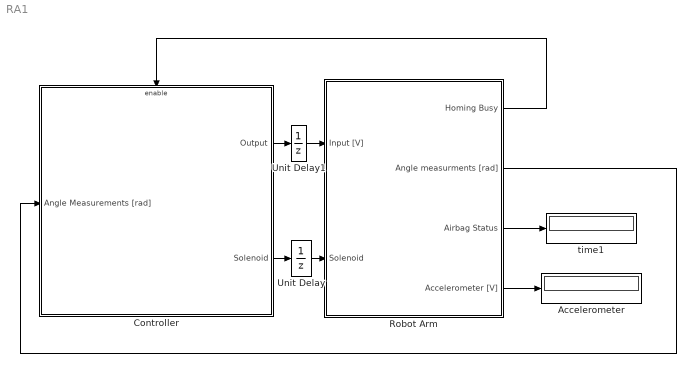
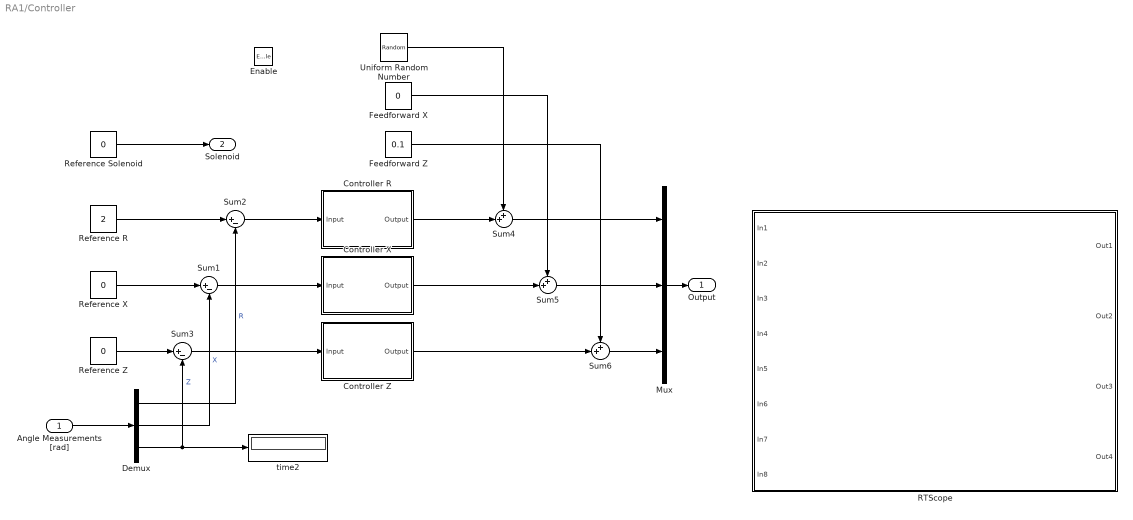
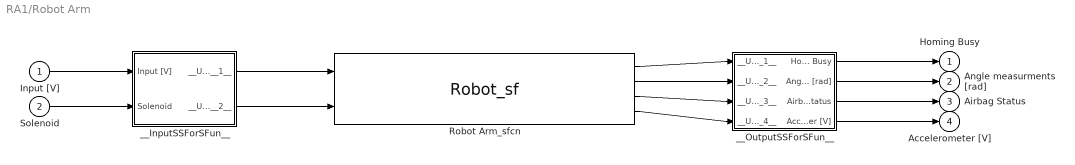
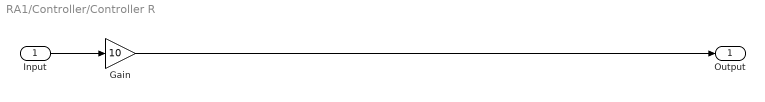
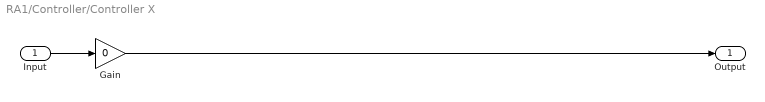
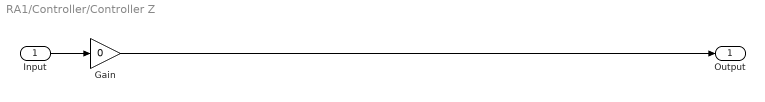
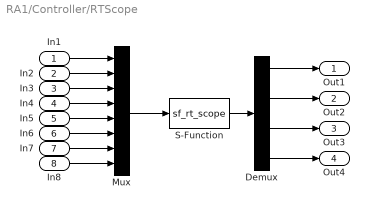
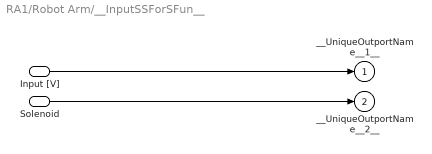
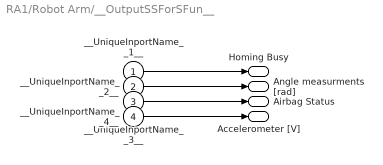
/*
 * RA1.c
 *
 * Academic License - for use in teaching, academic research, and meeting
 * course requirements at degree granting institutions only.  Not for
 * government, commercial, or other organizational use.
 *
 * Code generation for model "RA1".
 *
 * Model version              : 1.900
 * Simulink Coder version : 8.9 (R2015b) 13-Aug-2015
 * C source code generated on : Thu Mar 24 12:53:29 2016
 *
 * Target selection: ectarget.tlc
 * Note: GRT includes extra infrastructure and instrumentation for prototyping
 * Embedded hardware selection: 32-bit Generic
 * Code generation objectives: Unspecified
 * Validation result: Not run
 */

#include "RA1.h"
#include "RA1_private.h"
#include "RA1_dt.h"
#undef S_FUNCTION_NAME
#if !defined(RTW_GENERATED_SFCN_TUNABLE_PRMS_Robot_sf)
#define RTW_GENERATED_SFCN_TUNABLE_PRMS_Robot_sf
#endif

#include "Robot_sf.h"

const real_T RA1_RGND = 0.0;           /* real_T ground */

/* Block signals (auto storage) */
B_RA1_T RA1_B;

/* Block states (auto storage) */
DW_RA1_T RA1_DW;

/* Real-time model */
RT_MODEL_RA1_T RA1_M_;
RT_MODEL_RA1_T *const RA1_M = &RA1_M_;
real_T rt_urand_Upu32_Yd_f_pw_snf(uint32_T *u)
{
  uint32_T lo;
  uint32_T hi;

  /* Uniform random number generator (random number between 0 and 1)

     #define IA      16807                      magic multiplier = 7^5
     #define IM      2147483647                 modulus = 2^31-1
     #define IQ      127773                     IM div IA
     #define IR      2836                       IM modulo IA
     #define S       4.656612875245797e-10      reciprocal of 2^31-1
     test = IA * (seed % IQ) - IR * (seed/IQ)
     seed = test < 0 ? (test + IM) : test
     return (seed*S)
   */
  lo = *u % 127773U * 16807U;
  hi = *u / 127773U * 2836U;
  if (lo < hi) {
    *u = 2147483647U - (hi - lo);
  } else {
    *u = lo - hi;
  }

  return (real_T)*u * 4.6566128752457969E-10;
}

/* Model output function */
void RA1_output(void)
{
  /* Reset subsysRan breadcrumbs */
  srClearBC(RA1_DW.Controller_SubsysRanBC);

  /* UnitDelay: '<Root>/Unit Delay1' */
  RA1_B.UnitDelay1[0] = RA1_DW.UnitDelay1_DSTATE[0];
  RA1_B.UnitDelay1[1] = RA1_DW.UnitDelay1_DSTATE[1];
  RA1_B.UnitDelay1[2] = RA1_DW.UnitDelay1_DSTATE[2];

  /* UnitDelay: '<Root>/Unit Delay' */
  RA1_B.UnitDelay = RA1_DW.UnitDelay_DSTATE;

  /* RTW Generated Level2 S-Function Block: '<S2>/Robot Arm_sfcn' (Robot_sf) */
  {
    SimStruct *rts = RA1_M->childSfunctions[1];
    sfcnOutputs(rts, 0);
  }

  /* Outputs for Enabled SubSystem: '<Root>/Controller' incorporates:
   *  EnablePort: '<S1>/Enable'
   */
  if (RA1_B.RobotArm_sfcn_o1 > 0.0) {
    if (!RA1_DW.Controller_MODE) {
      RA1_DW.Controller_MODE = true;
    }
  } else {
    if (RA1_DW.Controller_MODE) {
      RA1_DW.Controller_MODE = false;
    }
  }

  if (RA1_DW.Controller_MODE) {
    /* UniformRandomNumber: '<S1>/Uniform Random Number' */
    RA1_B.UniformRandomNumber = RA1_DW.UniformRandomNumber_NextOutput;

    /* Sum: '<S1>/Sum4' incorporates:
     *  Constant: '<S1>/Reference R'
     *  Gain: '<S3>/Gain'
     *  Sum: '<S1>/Sum2'
     */
    RA1_B.Sum4 = (RA1_P.ReferenceR_Value - RA1_B.RobotArm_sfcn_o2[0]) *
      RA1_P.Gain_Gain + RA1_B.UniformRandomNumber;

    /* Sum: '<S1>/Sum5' incorporates:
     *  Constant: '<S1>/Feedforward X'
     *  Constant: '<S1>/Reference X'
     *  Gain: '<S4>/Gain'
     *  Sum: '<S1>/Sum1'
     */
    RA1_B.Sum5 = (RA1_P.ReferenceX_Value - RA1_B.RobotArm_sfcn_o2[1]) *
      RA1_P.Gain_Gain_e + RA1_P.FeedforwardX_Value;

    /* Sum: '<S1>/Sum6' incorporates:
     *  Constant: '<S1>/Feedforward Z'
     *  Constant: '<S1>/Reference Z'
     *  Gain: '<S5>/Gain'
     *  Sum: '<S1>/Sum3'
     */
    RA1_B.Sum6 = (RA1_P.ReferenceZ_Value - RA1_B.RobotArm_sfcn_o2[2]) *
      RA1_P.Gain_Gain_l + RA1_P.FeedforwardZ_Value;

    /* Constant: '<S1>/Reference Solenoid' */
    RA1_B.ReferenceSolenoid = RA1_P.ReferenceSolenoid_Value;

    /* Level2 S-Function Block: '<S6>/S-Function' (sf_rt_scope) */
    {
      SimStruct *rts = RA1_M->childSfunctions[0];
      sfcnOutputs(rts, 0);
    }

    srUpdateBC(RA1_DW.Controller_SubsysRanBC);
  }

  /* End of Outputs for SubSystem: '<Root>/Controller' */
}

/* Model update function */
void RA1_update(void)
{
  /* Update for UnitDelay: '<Root>/Unit Delay1' */
  RA1_DW.UnitDelay1_DSTATE[0] = RA1_B.Sum4;
  RA1_DW.UnitDelay1_DSTATE[1] = RA1_B.Sum5;
  RA1_DW.UnitDelay1_DSTATE[2] = RA1_B.Sum6;

  /* Update for UnitDelay: '<Root>/Unit Delay' */
  RA1_DW.UnitDelay_DSTATE = RA1_B.ReferenceSolenoid;

  /* RTW Generated Level2 S-Function Block: '<S2>/Robot Arm_sfcn' (Robot_sf) */
  {
    SimStruct *rts = RA1_M->childSfunctions[1];
    sfcnUpdate(rts, 0);
    if (ssGetErrorStatus(rts) != (NULL))
      return;
  }

  /* Update for Enabled SubSystem: '<Root>/Controller' incorporates:
   *  Update for EnablePort: '<S1>/Enable'
   */
  if (RA1_DW.Controller_MODE) {
    /* Update for UniformRandomNumber: '<S1>/Uniform Random Number' */
    RA1_DW.UniformRandomNumber_NextOutput = (RA1_P.UniformRandomNumber_Maximum -
      RA1_P.UniformRandomNumber_Minimum) * rt_urand_Upu32_Yd_f_pw_snf
      (&RA1_DW.RandSeed) + RA1_P.UniformRandomNumber_Minimum;
  }

  /* End of Update for SubSystem: '<Root>/Controller' */

  /* Update absolute time for base rate */
  /* The "clockTick0" counts the number of times the code of this task has
   * been executed. The absolute time is the multiplication of "clockTick0"
   * and "Timing.stepSize0". Size of "clockTick0" ensures timer will not
   * overflow during the application lifespan selected.
   * Timer of this task consists of two 32 bit unsigned integers.
   * The two integers represent the low bits Timing.clockTick0 and the high bits
   * Timing.clockTickH0. When the low bit overflows to 0, the high bits increment.
   */
  if (!(++RA1_M->Timing.clockTick0)) {
    ++RA1_M->Timing.clockTickH0;
  }

  RA1_M->Timing.t[0] = RA1_M->Timing.clockTick0 * RA1_M->Timing.stepSize0 +
    RA1_M->Timing.clockTickH0 * RA1_M->Timing.stepSize0 * 4294967296.0;

  {
    /* Update absolute timer for sample time: [0.000244140625s, 0.0s] */
    /* The "clockTick1" counts the number of times the code of this task has
     * been executed. The absolute time is the multiplication of "clockTick1"
     * and "Timing.stepSize1". Size of "clockTick1" ensures timer will not
     * overflow during the application lifespan selected.
     * Timer of this task consists of two 32 bit unsigned integers.
     * The two integers represent the low bits Timing.clockTick1 and the high bits
     * Timing.clockTickH1. When the low bit overflows to 0, the high bits increment.
     */
    if (!(++RA1_M->Timing.clockTick1)) {
      ++RA1_M->Timing.clockTickH1;
    }

    RA1_M->Timing.t[1] = RA1_M->Timing.clockTick1 * RA1_M->Timing.stepSize1 +
      RA1_M->Timing.clockTickH1 * RA1_M->Timing.stepSize1 * 4294967296.0;
  }
}
